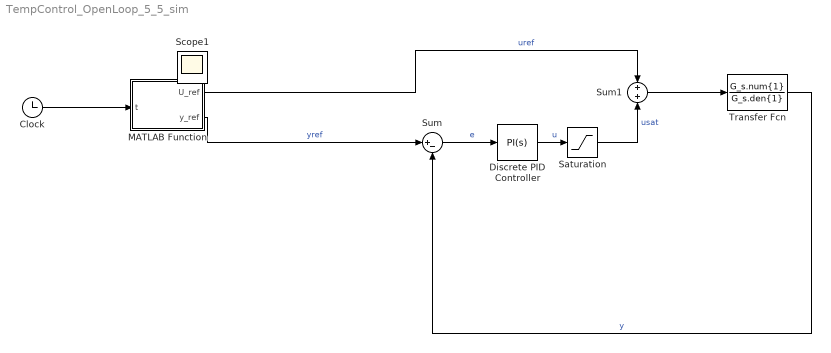
== matlab function TempControl_OpenLoop_5_5_sim/MATLAB Function ==
function [U_ref, y_ref] = fcn(t,Ti_ZN,Kp_ZN)

if t<80 
    y_ref=15/80*t;
    U_ref = (Ti_ZN/Kp_ZN)*(15/80)+1/Kp_ZN*y_ref;
elseif t<120
    y_ref=0*t+15;
    U_ref = (Ti_ZN/Kp_ZN)*(0)+1/Kp_ZN*y_ref;
else
    y_ref=-15/120*t+30;
    U_ref = (Ti_ZN/Kp_ZN)*(-15/120)+1/Kp_ZN*y_ref;
end

/*
 * Academic License - for use in teaching, academic research, and meeting
 * course requirements at degree granting institutions only.  Not for
 * government, commercial, or other organizational use.
 *
 * File: TempControl_OpenLoop_5_5_sim.c
 *
 * Code generated for Simulink model 'TempControl_OpenLoop_5_5_sim'.
 *
 * Model version                  : 5.5
 * Simulink Coder version         : 25.1 (R2025a) 21-Nov-2024
 * C/C++ source code generated on : Sat Oct 18 18:00:50 2025
 *
 * Target selection: ert.tlc
 * Embedded hardware selection: ARM Compatible->ARM Cortex
 * Code generation objectives: Unspecified
 * Validation result: Not run
 */

#include "TempControl_OpenLoop_5_5_sim.h"
#include "rtwtypes.h"
#include "TempControl_OpenLoop_5_5_sim_private.h"

/* Block signals (default storage) */
B_TempControl_OpenLoop_5_5_si_T TempControl_OpenLoop_5_5_sim_B;

/* Continuous states */
X_TempControl_OpenLoop_5_5_si_T TempControl_OpenLoop_5_5_sim_X;

/* Disabled State Vector */
XDis_TempControl_OpenLoop_5_5_T TempControl_OpenLoop_5_5_s_XDis;

/* Block states (default storage) */
DW_TempControl_OpenLoop_5_5_s_T TempControl_OpenLoop_5_5_sim_DW;

/* Real-time model */
static RT_MODEL_TempControl_OpenLoop_T TempControl_OpenLoop_5_5_sim_M_;
RT_MODEL_TempControl_OpenLoop_T *const TempControl_OpenLoop_5_5_sim_M =
  &TempControl_OpenLoop_5_5_sim_M_;

/*
 * This function updates continuous states using the ODE3 fixed-step
 * solver algorithm
 */
static void rt_ertODEUpdateContinuousStates(RTWSolverInfo *si )
{
  /* Solver Matrices */
  static const real_T rt_ODE3_A[3] = {
    1.0/2.0, 3.0/4.0, 1.0
  };

  static const real_T rt_ODE3_B[3][3] = {
    { 1.0/2.0, 0.0, 0.0 },

    { 0.0, 3.0/4.0, 0.0 },

    { 2.0/9.0, 1.0/3.0, 4.0/9.0 }
  };

  time_T t = rtsiGetT(si);
  time_T tnew = rtsiGetSolverStopTime(si);
  time_T h = rtsiGetStepSize(si);
  real_T *x = rtsiGetContStates(si);
  ODE3_IntgData *id = (ODE3_IntgData *)rtsiGetSolverData(si);
  real_T *y = id->y;
  real_T *f0 = id->f[0];
  real_T *f1 = id->f[1];
  real_T *f2 = id->f[2];
  real_T hB[3];
  int_T i;
  int_T nXc = 2;
  rtsiSetSimTimeStep(si,MINOR_TIME_STEP);

  /* Save the state values at time t in y, we'll use x as ynew. */
  (void) memcpy(y, x,
                (uint_T)nXc*sizeof(real_T));

  /* Assumes that rtsiSetT and ModelOutputs are up-to-date */
  /* f0 = f(t,y) */
  rtsiSetdX(si, f0);
  TempControl_OpenLoop_5_5_sim_derivatives();

  /* f(:,2) = feval(odefile, t + hA(1), y + f*hB(:,1), args(:)(*)); */
  hB[0] = h * rt_ODE3_B[0][0];
  for (i = 0; i < nXc; i++) {
    x[i] = y[i] + (f0[i]*hB[0]);
  }

  rtsiSetT(si, t + h*rt_ODE3_A[0]);
  rtsiSetdX(si, f1);
  TempControl_OpenLoop_5_5_sim_step();
  TempControl_OpenLoop_5_5_sim_derivatives();

  /* f(:,3) = feval(odefile, t + hA(2), y + f*hB(:,2), args(:)(*)); */
  for (i = 0; i <= 1; i++) {
    hB[i] = h * rt_ODE3_B[1][i];
  }

  for (i = 0; i < nXc; i++) {
    x[i] = y[i] + (f0[i]*hB[0] + f1[i]*hB[1]);
  }

  rtsiSetT(si, t + h*rt_ODE3_A[1]);
  rtsiSetdX(si, f2);
  TempControl_OpenLoop_5_5_sim_step();
  TempControl_OpenLoop_5_5_sim_derivatives();

  /* tnew = t + hA(3);
     ynew = y + f*hB(:,3); */
  for (i = 0; i <= 2; i++) {
    hB[i] = h * rt_ODE3_B[2][i];
  }

  for (i = 0; i < nXc; i++) {
    x[i] = y[i] + (f0[i]*hB[0] + f1[i]*hB[1] + f2[i]*hB[2]);
  }

  rtsiSetT(si, tnew);
  rtsiSetSimTimeStep(si,MAJOR_TIME_STEP);
}

/* Model step function */
void TempControl_OpenLoop_5_5_sim_step(void)
{
  real_T rtb_Clock;
  boolean_T tmp;
  if (rtmIsMajorTimeStep(TempControl_OpenLoop_5_5_sim_M)) {
    /* set solver stop time */
    rtsiSetSolverStopTime(&TempControl_OpenLoop_5_5_sim_M->solverInfo,
                          ((TempControl_OpenLoop_5_5_sim_M->Timing.clockTick0+1)*
      TempControl_OpenLoop_5_5_sim_M->Timing.stepSize0));
  }                                    /* end MajorTimeStep */

  /* Update absolute time of base rate at minor time step */
  if (rtmIsMinorTimeStep(TempControl_OpenLoop_5_5_sim_M)) {
    TempControl_OpenLoop_5_5_sim_M->Timing.t[0] = rtsiGetT
      (&TempControl_OpenLoop_5_5_sim_M->solverInfo);
  }

  /* Clock: '<Root>/Clock' */
  rtb_Clock = TempControl_OpenLoop_5_5_sim_M->Timing.t[0];

  /* MATLAB Function: '<Root>/MATLAB Function' */
  if (rtb_Clock < 80.0) {
    TempControl_OpenLoop_5_5_sim_B.y_ref = 0.1875 * rtb_Clock;
    TempControl_OpenLoop_5_5_sim_B.U_ref = TempControl_OpenLoop_5_5_sim_P.Ti_ZN /
      TempControl_OpenLoop_5_5_sim_P.Kp_ZN * 0.1875 + 1.0 /
      TempControl_OpenLoop_5_5_sim_P.Kp_ZN *
      TempControl_OpenLoop_5_5_sim_B.y_ref;
  } else if (rtb_Clock < 120.0) {
    TempControl_OpenLoop_5_5_sim_B.y_ref = 15.0;
    TempControl_OpenLoop_5_5_sim_B.U_ref = TempControl_OpenLoop_5_5_sim_P.Ti_ZN /
      TempControl_OpenLoop_5_5_sim_P.Kp_ZN * 0.0 + 1.0 /
      TempControl_OpenLoop_5_5_sim_P.Kp_ZN * 15.0;
  } else {
    TempControl_OpenLoop_5_5_sim_B.y_ref = -0.125 * rtb_Clock + 30.0;
    TempControl_OpenLoop_5_5_sim_B.U_ref = TempControl_OpenLoop_5_5_sim_P.Ti_ZN /
      TempControl_OpenLoop_5_5_sim_P.Kp_ZN * -0.125 + 1.0 /
      TempControl_OpenLoop_5_5_sim_P.Kp_ZN *
      TempControl_OpenLoop_5_5_sim_B.y_ref;
  }

  /* End of MATLAB Function: '<Root>/MATLAB Function' */
  tmp = rtmIsMajorTimeStep(TempControl_OpenLoop_5_5_sim_M);
  if (tmp) {
  }

  /* TransferFcn: '<Root>/Transfer Fcn' */
  TempControl_OpenLoop_5_5_sim_B.y_cont = 0.0;
  TempControl_OpenLoop_5_5_sim_B.y_cont +=
    TempControl_OpenLoop_5_5_sim_P.TransferFcn_C *
    TempControl_OpenLoop_5_5_sim_X.TransferFcn_CSTATE;

  /* Sum: '<Root>/Sum' */
  TempControl_OpenLoop_5_5_sim_B.e = TempControl_OpenLoop_5_5_sim_B.y_ref -
    TempControl_OpenLoop_5_5_sim_B.y_cont;

  /* Sum: '<S46>/Sum' incorporates:
   *  Gain: '<S42>/Proportional Gain'
   *  Integrator: '<S37>/Integrator'
   */
  TempControl_OpenLoop_5_5_sim_B.usat = TempControl_OpenLoop_5_5_sim_P.Kp_ZN *
    TempControl_OpenLoop_5_5_sim_B.e +
    TempControl_OpenLoop_5_5_sim_X.Integrator_CSTATE;

  /* Saturate: '<Root>/Saturation' */
  if (TempControl_OpenLoop_5_5_sim_B.usat >
      TempControl_OpenLoop_5_5_sim_P.Saturation_UpperSat) {
    /* Sum: '<S46>/Sum' incorporates:
     *  Saturate: '<Root>/Saturation'
     */
    TempControl_OpenLoop_5_5_sim_B.usat =
      TempControl_OpenLoop_5_5_sim_P.Saturation_UpperSat;
  } else if (TempControl_OpenLoop_5_5_sim_B.usat <
             TempControl_OpenLoop_5_5_sim_P.Saturation_LowerSat) {
    /* Sum: '<S46>/Sum' incorporates:
     *  Saturate: '<Root>/Saturation'
     */
    TempControl_OpenLoop_5_5_sim_B.usat =
      TempControl_OpenLoop_5_5_sim_P.Saturation_LowerSat;
  }

  /* End of Saturate: '<Root>/Saturation' */

  /* Sum: '<Root>/Sum1' */
  TempControl_OpenLoop_5_5_sim_B.Sum1 = TempControl_OpenLoop_5_5_sim_B.U_ref +
    TempControl_OpenLoop_5_5_sim_B.usat;
  if (tmp) {
  }

  /* Gain: '<S34>/Integral Gain' */
  TempControl_OpenLoop_5_5_sim_B.IntegralGain =
    TempControl_OpenLoop_5_5_sim_P.Ki_ZN * TempControl_OpenLoop_5_5_sim_B.e;
  if (tmp) {
  }

  if (rtmIsMajorTimeStep(TempControl_OpenLoop_5_5_sim_M)) {
    if (rtmIsMajorTimeStep(TempControl_OpenLoop_5_5_sim_M)) {/* Sample time: [0.01s, 0.0s] */
      extmodeErrorCode_T errorCode = EXTMODE_SUCCESS;
      extmodeSimulationTime_T extmodeTime = (extmodeSimulationTime_T)
        ((TempControl_OpenLoop_5_5_sim_M->Timing.clockTick1) * 0.01);

      /* Trigger External Mode event */
      errorCode = extmodeEvent(1, extmodeTime);
      if (errorCode != EXTMODE_SUCCESS) {
        /* Code to handle External Mode event errors
           may be added here */
      }
    }
  }                                    /* end MajorTimeStep */

  if (rtmIsMajorTimeStep(TempControl_OpenLoop_5_5_sim_M)) {
    rt_ertODEUpdateContinuousStates(&TempControl_OpenLoop_5_5_sim_M->solverInfo);

    /* Update absolute time for base rate */
    /* The "clockTick0" counts the number of times the code of this task has
     * been executed. The absolute time is the multiplication of "clockTick0"
     * and "Timing.stepSize0". Size of "clockTick0" ensures timer will not
     * overflow during the application lifespan selected.
     */
    ++TempControl_OpenLoop_5_5_sim_M->Timing.clockTick0;
    TempControl_OpenLoop_5_5_sim_M->Timing.t[0] = rtsiGetSolverStopTime
      (&TempControl_OpenLoop_5_5_sim_M->solverInfo);

    {
      /* Update absolute timer for sample time: [0.01s, 0.0s] */
      /* The "clockTick1" counts the number of times the code of this task has
       * been executed. The resolution of this integer timer is 0.01, which is the step size
       * of the task. Size of "clockTick1" ensures timer will not overflow during the
       * application lifespan selected.
       */
      TempControl_OpenLoop_5_5_sim_M->Timing.clockTick1++;
    }
  }                                    /* end MajorTimeStep */
}
